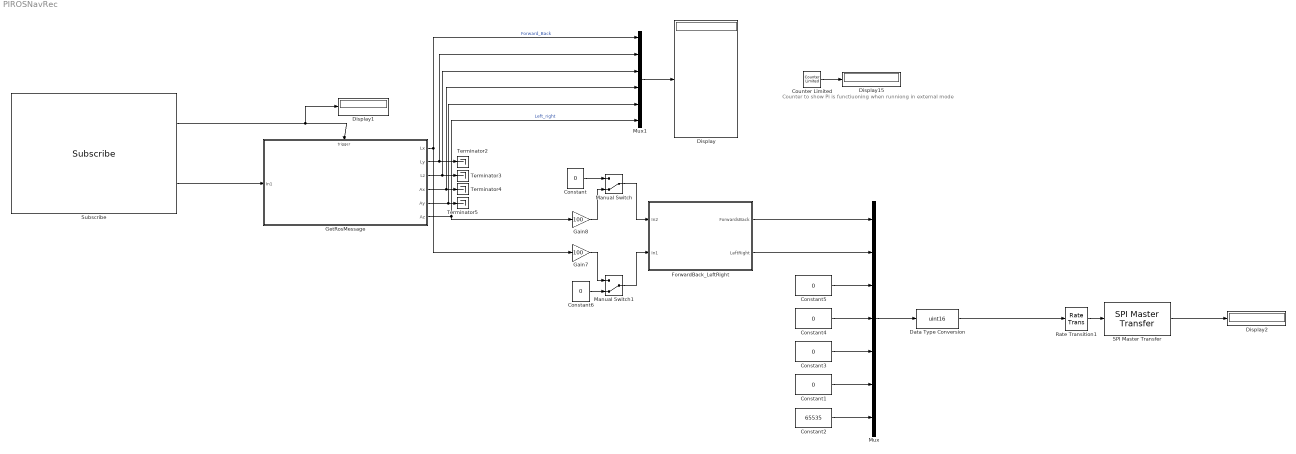
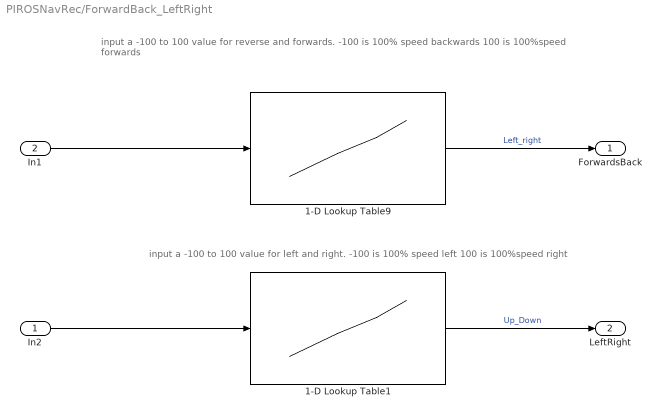
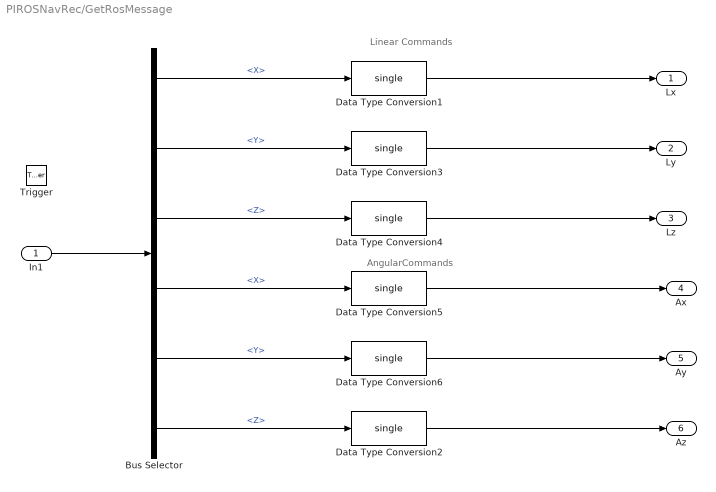
//
// Academic License - for use in teaching, academic research, and meeting
// course requirements at degree granting institutions only.  Not for
// government, commercial, or other organizational use.
//
// File: PIROSNavRec.cpp
//
// Code generated for Simulink model 'PIROSNavRec'.
//
// Model version                  : 1.6
// Simulink Coder version         : 9.2 (R2019b) 18-Jul-2019
// C/C++ source code generated on : Wed Feb  5 15:34:15 2020
//
// Target selection: ert.tlc
// Embedded hardware selection: ARM Compatible->ARM Cortex
// Code generation objectives: Unspecified
// Validation result: Not run
//
#include "PIROSNavRec.h"
#include "PIROSNavRec_private.h"
#include "PIROSNavRec_dt.h"

// Block signals (default storage)
B_PIROSNavRec_T PIROSNavRec_B;

// Block states (default storage)
DW_PIROSNavRec_T PIROSNavRec_DW;

// Previous zero-crossings (trigger) states
PrevZCX_PIROSNavRec_T PIROSNavRec_PrevZCX;

// Real-time model
RT_MODEL_PIROSNavRec_T PIROSNavRec_M_ = RT_MODEL_PIROSNavRec_T();
RT_MODEL_PIROSNavRec_T *const PIROSNavRec_M = &PIROSNavRec_M_;

// Forward declaration for local functions
static void matlabCodegenHandle_matlabCod_a(ros_slros_internal_block_Subs_T *obj);
static void PIROSNavRec_SystemCore_release(const codertarget_raspi_internal_SP_T
  *obj);
static void PIROSNavRec_SystemCore_delete(const codertarget_raspi_internal_SP_T *
  obj);
static void matlabCodegenHandle_matlabCodeg(codertarget_raspi_internal_SP_T *obj);
static void rate_scheduler(void);
real32_T look1_iflf_binlcpw(real32_T u0, const real32_T bp0[], const real32_T
  table[], uint32_T maxIndex)
{
  real32_T frac;
  uint32_T iRght;
  uint32_T iLeft;
  uint32_T bpIdx;

  // Column-major Lookup 1-D
  // Search method: 'binary'
  // Use previous index: 'off'
  // Interpolation method: 'Linear point-slope'
  // Extrapolation method: 'Clip'
  // Use last breakpoint for index at or above upper limit: 'off'
  // Remove protection against out-of-range input in generated code: 'off'

  // Prelookup - Index and Fraction
  // Index Search method: 'binary'
  // Extrapolation method: 'Clip'
  // Use previous index: 'off'
  // Use last breakpoint for index at or above upper limit: 'off'
  // Remove protection against out-of-range input in generated code: 'off'

  if (u0 <= bp0[0U]) {
    iLeft = 0U;
    frac = 0.0F;
  } else if (u0 < bp0[maxIndex]) {
    // Binary Search
    bpIdx = maxIndex >> 1U;
    iLeft = 0U;
    iRght = maxIndex;
    while (iRght - iLeft > 1U) {
      if (u0 < bp0[bpIdx]) {
        iRght = bpIdx;
      } else {
        iLeft = bpIdx;
      }

      bpIdx = (iRght + iLeft) >> 1U;
    }

    frac = (u0 - bp0[iLeft]) / (bp0[iLeft + 1U] - bp0[iLeft]);
  } else {
    iLeft = maxIndex - 1U;
    frac = 1.0F;
  }

  // Column-major Interpolation 1-D
  // Interpolation method: 'Linear point-slope'
  // Use last breakpoint for index at or above upper limit: 'off'
  // Overflow mode: 'portable wrapping'

  return (table[iLeft + 1U] - table[iLeft]) * frac + table[iLeft];
}

//
//   This function updates active task flag for each subrate.
// The function is called at model base rate, hence the
// generated code self-manages all its subrates.
//
static void rate_scheduler(void)
{
  // Compute which subrates run during the next base time step.  Subrates
  //  are an integer multiple of the base rate counter.  Therefore, the subtask
  //  counter is reset when it reaches its limit (zero means run).

  (PIROSNavRec_M->Timing.TaskCounters.TID[1])++;
  if ((PIROSNavRec_M->Timing.TaskCounters.TID[1]) > 9) {// Sample time: [1.0s, 0.0s] 
    PIROSNavRec_M->Timing.TaskCounters.TID[1] = 0;
  }
}

real32_T rt_roundf_snf(real32_T u)
{
  real32_T y;
  if (static_cast<real32_T>(fabs(static_cast<real_T>(u))) < 8.388608E+6F) {
    if (u >= 0.5F) {
      y = static_cast<real32_T>(floor(static_cast<real_T>((u + 0.5F))));
    } else if (u > -0.5F) {
      y = u * 0.0F;
    } else {
      y = static_cast<real32_T>(ceil(static_cast<real_T>((u - 0.5F))));
    }
  } else {
    y = u;
  }

  return y;
}

static void matlabCodegenHandle_matlabCod_a(ros_slros_internal_block_Subs_T *obj)
{
  if (!obj->matlabCodegenIsDeleted) {
    obj->matlabCodegenIsDeleted = true;
  }
}

static void PIROSNavRec_SystemCore_release(const codertarget_raspi_internal_SP_T
  *obj)
{
  uint32_T PinNameLoc;
  uint32_T MOSIPinLoc;
  uint32_T MISOPinLoc;
  uint32_T SCKPinLoc;
  if ((obj->isInitialized == 1) && obj->isSetupComplete) {
    PinNameLoc = SPI0_CE0;
    MOSIPinLoc = MW_UNDEFINED_VALUE;
    MISOPinLoc = MW_UNDEFINED_VALUE;
    SCKPinLoc = MW_UNDEFINED_VALUE;
    MW_SPI_Close(obj->MW_SPI_HANDLE, MOSIPinLoc, MISOPinLoc, SCKPinLoc,
                 PinNameLoc);
  }
}

static void PIROSNavRec_SystemCore_delete(const codertarget_raspi_internal_SP_T *
  obj)
{
  PIROSNavRec_SystemCore_release(obj);
}

static void matlabCodegenHandle_matlabCodeg(codertarget_raspi_internal_SP_T *obj)
{
  if (!obj->matlabCodegenIsDeleted) {
    obj->matlabCodegenIsDeleted = true;
    PIROSNavRec_SystemCore_delete(obj);
  }
}

// Model step function
void PIROSNavRec_step(void)
{
  uint32_T PinNameLoc;
  uint8_T status;
  MW_SPI_Mode_type ClockModeValue;
  MW_SPI_FirstBitTransfer_Type MsbFirstTransferLoc;
  uint16_T b_x[7];
  int32_T b_k;
  uint8_T y[2];
  uint8_T b_x_0[2];
  uint16_T y_0;
  real32_T tmp;
  uint16_T b_x_1;

  // Reset subsysRan breadcrumbs
  srClearBC(PIROSNavRec_DW.GetRosMessage_SubsysRanBC);

  // Reset subsysRan breadcrumbs
  srClearBC(PIROSNavRec_DW.EnabledSubsystem_SubsysRanBC);

  // Outputs for Atomic SubSystem: '<Root>/Subscribe'
  // MATLABSystem: '<S4>/SourceBlock'
  PIROSNavRec_B.SourceBlock_o1 = Sub_PIROSNavRec_21.getLatestMessage
    (&PIROSNavRec_B.b_varargout_2);

  // Outputs for Enabled SubSystem: '<S4>/Enabled Subsystem' incorporates:
  //   EnablePort: '<S7>/Enable'

  if (PIROSNavRec_B.SourceBlock_o1) {
    // Inport: '<S7>/In1' incorporates:
    //   MATLABSystem: '<S4>/SourceBlock'

    PIROSNavRec_B.In1 = PIROSNavRec_B.b_varargout_2;
    srUpdateBC(PIROSNavRec_DW.EnabledSubsystem_SubsysRanBC);
  }

  // End of Outputs for SubSystem: '<S4>/Enabled Subsystem'
  // End of Outputs for SubSystem: '<Root>/Subscribe'

  // Outputs for Triggered SubSystem: '<Root>/GetRosMessage' incorporates:
  //   TriggerPort: '<S3>/Trigger'

  if (PIROSNavRec_B.SourceBlock_o1 &&
      (PIROSNavRec_PrevZCX.GetRosMessage_Trig_ZCE != POS_ZCSIG)) {
    // DataTypeConversion: '<S3>/Data Type Conversion1'
    PIROSNavRec_B.DataTypeConversion1 = static_cast<real32_T>
      (PIROSNavRec_B.In1.Linear.X);

    // DataTypeConversion: '<S3>/Data Type Conversion2'
    PIROSNavRec_B.DataTypeConversion2 = static_cast<real32_T>
      (PIROSNavRec_B.In1.Angular.Z);

    // DataTypeConversion: '<S3>/Data Type Conversion3'
    PIROSNavRec_B.DataTypeConversion3 = static_cast<real32_T>
      (PIROSNavRec_B.In1.Linear.Y);

    // DataTypeConversion: '<S3>/Data Type Conversion4'
    PIROSNavRec_B.DataTypeConversion4 = static_cast<real32_T>
      (PIROSNavRec_B.In1.Linear.Z);

    // DataTypeConversion: '<S3>/Data Type Conversion5'
    PIROSNavRec_B.DataTypeConversion5 = static_cast<real32_T>
      (PIROSNavRec_B.In1.Angular.X);

    // DataTypeConversion: '<S3>/Data Type Conversion6'
    PIROSNavRec_B.DataTypeConversion6 = static_cast<real32_T>
      (PIROSNavRec_B.In1.Angular.Y);
    PIROSNavRec_DW.GetRosMessage_SubsysRanBC = 4;
  }

  PIROSNavRec_PrevZCX.GetRosMessage_Trig_ZCE = PIROSNavRec_B.SourceBlock_o1;

  // End of Outputs for SubSystem: '<Root>/GetRosMessage'

  // ManualSwitch: '<Root>/Manual Switch1' incorporates:
  //   Constant: '<Root>/Constant6'
  //   Gain: '<Root>/Gain7'

  if (PIROSNavRec_P.ManualSwitch1_CurrentSetting == 1) {
    tmp = PIROSNavRec_P.Gain7_Gain * PIROSNavRec_B.DataTypeConversion1;
  } else {
    tmp = PIROSNavRec_P.Constant6_Value;
  }

  // End of ManualSwitch: '<Root>/Manual Switch1'

  // DataTypeConversion: '<Root>/Data Type Conversion' incorporates:
  //   Lookup_n-D: '<S2>/1-D Lookup Table9'

  tmp = rt_roundf_snf(look1_iflf_binlcpw(tmp,
    PIROSNavRec_P.uDLookupTable9_bp01Data,
    PIROSNavRec_P.uDLookupTable9_tableData, 4U));
  if (tmp < 65536.0F) {
    if (tmp >= 0.0F) {
      // MATLABSystem: '<Root>/SPI Master Transfer'
      b_x[0] = static_cast<uint16_T>(tmp);
    } else {
      // MATLABSystem: '<Root>/SPI Master Transfer'
      b_x[0] = 0U;
    }
  } else {
    // MATLABSystem: '<Root>/SPI Master Transfer'
    b_x[0] = MAX_uint16_T;
  }

  // ManualSwitch: '<Root>/Manual Switch' incorporates:
  //   Constant: '<Root>/Constant'
  //   Gain: '<Root>/Gain8'

  if (PIROSNavRec_P.ManualSwitch_CurrentSetting == 1) {
    tmp = PIROSNavRec_P.Constant_Value_b;
  } else {
    tmp = PIROSNavRec_P.Gain8_Gain * PIROSNavRec_B.DataTypeConversion2;
  }

  // End of ManualSwitch: '<Root>/Manual Switch'

  // DataTypeConversion: '<Root>/Data Type Conversion' incorporates:
  //   Constant: '<Root>/Constant1'
  //   Constant: '<Root>/Constant2'
  //   Constant: '<Root>/Constant3'
  //   Constant: '<Root>/Constant4'
  //   Constant: '<Root>/Constant5'
  //   Lookup_n-D: '<S2>/1-D Lookup Table1'

  tmp = rt_roundf_snf(look1_iflf_binlcpw(tmp,
    PIROSNavRec_P.uDLookupTable1_bp01Data,
    PIROSNavRec_P.uDLookupTable1_tableData, 4U));
  if (tmp < 65536.0F) {
    if (tmp >= 0.0F) {
      // MATLABSystem: '<Root>/SPI Master Transfer'
      b_x[1] = static_cast<uint16_T>(tmp);
    } else {
      // MATLABSystem: '<Root>/SPI Master Transfer'
      b_x[1] = 0U;
    }
  } else {
    // MATLABSystem: '<Root>/SPI Master Transfer'
    b_x[1] = MAX_uint16_T;
  }

  tmp = rt_roundf_snf(PIROSNavRec_P.Constant5_Value);
  if (tmp < 65536.0F) {
    if (tmp >= 0.0F) {
      // MATLABSystem: '<Root>/SPI Master Transfer'
      b_x[2] = static_cast<uint16_T>(tmp);
    } else {
      // MATLABSystem: '<Root>/SPI Master Transfer'
      b_x[2] = 0U;
    }
  } else {
    // MATLABSystem: '<Root>/SPI Master Transfer'
    b_x[2] = MAX_uint16_T;
  }

  tmp = rt_roundf_snf(PIROSNavRec_P.Constant4_Value);
  if (tmp < 65536.0F) {
    if (tmp >= 0.0F) {
      // MATLABSystem: '<Root>/SPI Master Transfer'
      b_x[3] = static_cast<uint16_T>(tmp);
    } else {
      // MATLABSystem: '<Root>/SPI Master Transfer'
      b_x[3] = 0U;
    }
  } else {
    // MATLABSystem: '<Root>/SPI Master Transfer'
    b_x[3] = MAX_uint16_T;
  }

  tmp = rt_roundf_snf(PIROSNavRec_P.Constant3_Value);
  if (tmp < 65536.0F) {
    if (tmp >= 0.0F) {
      // MATLABSystem: '<Root>/SPI Master Transfer'
      b_x[4] = static_cast<uint16_T>(tmp);
    } else {
      // MATLABSystem: '<Root>/SPI Master Transfer'
      b_x[4] = 0U;
    }
  } else {
    // MATLABSystem: '<Root>/SPI Master Transfer'
    b_x[4] = MAX_uint16_T;
  }

  tmp = rt_roundf_snf(PIROSNavRec_P.Constant1_Value);
  if (tmp < 65536.0F) {
    if (tmp >= 0.0F) {
      // MATLABSystem: '<Root>/SPI Master Transfer'
      b_x[5] = static_cast<uint16_T>(tmp);
    } else {
      // MATLABSystem: '<Root>/SPI Master Transfer'
      b_x[5] = 0U;
    }
  } else {
    // MATLABSystem: '<Root>/SPI Master Transfer'
    b_x[5] = MAX_uint16_T;
  }

  tmp = rt_roundf_snf(PIROSNavRec_P.Constant2_Value);
  if (tmp < 65536.0F) {
    if (tmp >= 0.0F) {
      // MATLABSystem: '<Root>/SPI Master Transfer'
      b_x[6] = static_cast<uint16_T>(tmp);
    } else {
      // MATLABSystem: '<Root>/SPI Master Transfer'
      b_x[6] = 0U;
    }
  } else {
    // MATLABSystem: '<Root>/SPI Master Transfer'
    b_x[6] = MAX_uint16_T;
  }

  // MATLABSystem: '<Root>/SPI Master Transfer'
  for (b_k = 0; b_k < 7; b_k++) {
    b_x_1 = b_x[b_k];
    memcpy((void *)&y[0], (void *)&b_x_1, (uint32_T)((size_t)2 * sizeof(uint8_T)));
    b_x_0[0] = y[1];
    b_x_0[1] = y[0];
    memcpy((void *)&y_0, (void *)&b_x_0[0], (uint32_T)((size_t)1 * sizeof
            (uint16_T)));
    b_x[b_k] = y_0;
  }

  memcpy((void *)&PIROSNavRec_B.wrDataRaw[0], (void *)&b_x[0], (uint32_T)
         ((size_t)14 * sizeof(uint8_T)));
  PinNameLoc = SPI0_CE0;
  MW_SPI_SetSlaveSelect(PIROSNavRec_DW.obj.MW_SPI_HANDLE, PinNameLoc, true);
  ClockModeValue = MW_SPI_MODE_0;
  MsbFirstTransferLoc = MW_SPI_MOST_SIGNIFICANT_BIT_FIRST;
  status = MW_SPI_SetFormat(PIROSNavRec_DW.obj.MW_SPI_HANDLE, 8, ClockModeValue,
    MsbFirstTransferLoc);
  if (status == 0) {
    MW_SPI_MasterWriteRead_8bits(PIROSNavRec_DW.obj.MW_SPI_HANDLE,
      PIROSNavRec_B.wrDataRaw, PIROSNavRec_B.rdDataRaw, 14U);
  }

  memcpy((void *)&PIROSNavRec_B.SPIMasterTransfer[0], (void *)
         &PIROSNavRec_B.rdDataRaw[0], (uint32_T)((size_t)7 * sizeof(uint16_T)));
  for (b_k = 0; b_k < 7; b_k++) {
    b_x_1 = PIROSNavRec_B.SPIMasterTransfer[b_k];
    memcpy((void *)&y[0], (void *)&b_x_1, (uint32_T)((size_t)2 * sizeof(uint8_T)));
    b_x_0[0] = y[1];
    b_x_0[1] = y[0];
    memcpy((void *)&y_0, (void *)&b_x_0[0], (uint32_T)((size_t)1 * sizeof
            (uint16_T)));
    PIROSNavRec_B.SPIMasterTransfer[b_k] = y_0;
  }

  if (PIROSNavRec_M->Timing.TaskCounters.TID[1] == 0) {
    // UnitDelay: '<S1>/Output'
    PIROSNavRec_B.Output = PIROSNavRec_DW.Output_DSTATE;

    // Sum: '<S5>/FixPt Sum1' incorporates:
    //   Constant: '<S5>/FixPt Constant'

    PIROSNavRec_DW.Output_DSTATE = static_cast<uint8_T>((static_cast<uint32_T>
      (PIROSNavRec_B.Output) + PIROSNavRec_P.FixPtConstant_Value));

    // Switch: '<S6>/FixPt Switch' incorporates:
    //   Constant: '<S6>/Constant'
    //   UnitDelay: '<S1>/Output'

    if (PIROSNavRec_DW.Output_DSTATE > PIROSNavRec_P.CounterLimited_uplimit) {
      PIROSNavRec_DW.Output_DSTATE = PIROSNavRec_P.Constant_Value_i;
    }

    // End of Switch: '<S6>/FixPt Switch'
  }

  // External mode
  rtExtModeUploadCheckTrigger(2);

  {                                    // Sample time: [0.1s, 0.0s]
    rtExtModeUpload(0, (real_T)PIROSNavRec_M->Timing.taskTime0);
  }

  if (PIROSNavRec_M->Timing.TaskCounters.TID[1] == 0) {// Sample time: [1.0s, 0.0s] 
    rtExtModeUpload(1, (real_T)((PIROSNavRec_M->Timing.clockTick1) * 1.0));
  }

  // signal main to stop simulation
  {                                    // Sample time: [0.1s, 0.0s]
    if ((rtmGetTFinal(PIROSNavRec_M)!=-1) &&
        !((rtmGetTFinal(PIROSNavRec_M)-PIROSNavRec_M->Timing.taskTime0) >
          PIROSNavRec_M->Timing.taskTime0 * (DBL_EPSILON))) {
      rtmSetErrorStatus(PIROSNavRec_M, "Simulation finished");
    }

    if (rtmGetStopRequested(PIROSNavRec_M)) {
      rtmSetErrorStatus(PIROSNavRec_M, "Simulation finished");
    }
  }

  // Update absolute time for base rate
  // The "clockTick0" counts the number of times the code of this task has
  //  been executed. The absolute time is the multiplication of "clockTick0"
  //  and "Timing.stepSize0". Size of "clockTick0" ensures timer will not
  //  overflow during the application lifespan selected.

  PIROSNavRec_M->Timing.taskTime0 =
    (++PIROSNavRec_M->Timing.clockTick0) * PIROSNavRec_M->Timing.stepSize0;
  if (PIROSNavRec_M->Timing.TaskCounters.TID[1] == 0) {
    // Update absolute timer for sample time: [1.0s, 0.0s]
    // The "clockTick1" counts the number of times the code of this task has
    //  been executed. The resolution of this integer timer is 1.0, which is the step size
    //  of the task. Size of "clockTick1" ensures timer will not overflow during the
    //  application lifespan selected.

    PIROSNavRec_M->Timing.clockTick1++;
  }

  rate_scheduler();
}
